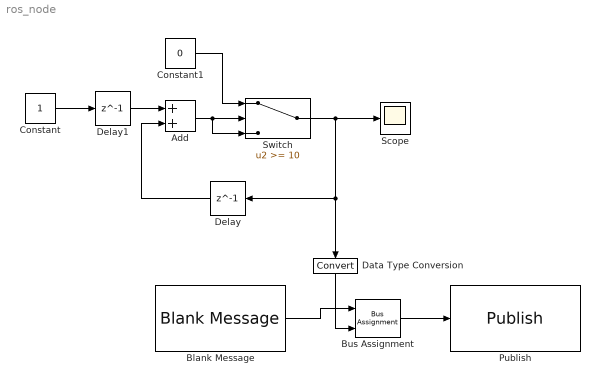
/*
 * ros_node.cpp
 *
 * Academic License - for use in teaching, academic research, and meeting
 * course requirements at degree granting institutions only.  Not for
 * government, commercial, or other organizational use.
 *
 * Code generation for model "ros_node".
 *
 * Model version              : 1.6
 * Simulink Coder version : 9.1 (R2019a) 23-Nov-2018
 * C++ source code generated on : Sat Dec 12 09:39:45 2020
 *
 * Target selection: ert.tlc
 * Note: GRT includes extra infrastructure and instrumentation for prototyping
 * Embedded hardware selection: Generic->Unspecified (assume 32-bit Generic)
 * Code generation objectives: Unspecified
 * Validation result: Not run
 */

#include "ros_node.h"
#include "ros_node_private.h"

void ros_nodeModelClass::matlabCodegenHandle_matlabCodeg
  (robotics_slros_internal_block_T *obj)
{
  if (!obj->matlabCodegenIsDeleted) {
    obj->matlabCodegenIsDeleted = true;
  }
}

/* Model step function */
void ros_nodeModelClass::step()
{
  /* local block i/o variables */
  real_T rtb_Switch;
  SL_Bus_ros_node_std_msgs_UInt8 rtb_BusAssignment;
  real_T tmp;

  /* Sum: '<Root>/Add' incorporates:
   *  Delay: '<Root>/Delay'
   *  Delay: '<Root>/Delay1'
   */
  rtb_Switch = ros_node_DW.Delay1_DSTATE + ros_node_DW.Delay_DSTATE;

  /* Switch: '<Root>/Switch' incorporates:
   *  Constant: '<Root>/Constant1'
   */
  if (rtb_Switch >= ros_node_P.Switch_Threshold) {
    rtb_Switch = ros_node_P.Constant1_Value;
  }

  /* End of Switch: '<Root>/Switch' */

  /* DataTypeConversion: '<Root>/Data Type Conversion' */
  tmp = floor(rtb_Switch);
  if (rtIsNaN(tmp) || rtIsInf(tmp)) {
    tmp = 0.0;
  } else {
    tmp = fmod(tmp, 256.0);
  }

  /* BusAssignment: '<Root>/Bus Assignment' incorporates:
   *  DataTypeConversion: '<Root>/Data Type Conversion'
   */
  rtb_BusAssignment.Data = static_cast<uint8_T>((tmp < 0.0 ? static_cast<int32_T>
    (static_cast<uint8_T>(-static_cast<int8_T>(static_cast<uint8_T>(-tmp)))) :
    static_cast<int32_T>(static_cast<uint8_T>(tmp))));

  /* Outputs for Atomic SubSystem: '<Root>/Publish' */
  /* MATLABSystem: '<S2>/SinkBlock' */
  Pub_ros_node_2.publish(&rtb_BusAssignment);

  /* End of Outputs for SubSystem: '<Root>/Publish' */
  /* Update for Delay: '<Root>/Delay1' incorporates:
   *  Constant: '<Root>/Constant'
   */
  ros_node_DW.Delay1_DSTATE = ros_node_P.Constant_Value_a;

  /* Update for Delay: '<Root>/Delay' */
  ros_node_DW.Delay_DSTATE = rtb_Switch;
}
